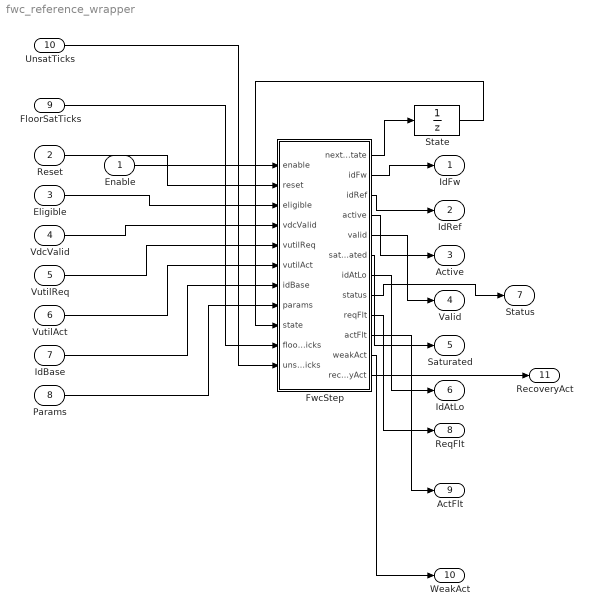
== matlab function fwc_reference_wrapper/FwcStep ==
function [nextState,idFw,idRef,active,valid,saturated,idAtLo,status,reqFlt,actFlt,weakAct,recoveryAct] = fcn(enable,reset,eligible,vdcValid,vutilReq,vutilAct,idBase,params,state,floorSatTicks,unsatTicks)
%#codegen
[nextState,idFw,idRef,active,valid,saturated,idAtLo,status,reqFlt,actFlt,weakAct,recoveryAct] = fwc_reference_step(enable,reset,eligible,vdcValid,vutilReq,vutilAct,idBase,state,params,floorSatTicks,unsatTicks);
end

/*
 * Academic License - for use in teaching, academic research, and meeting
 * course requirements at degree granting institutions only.  Not for
 * government, commercial, or other organizational use.
 *
 * File: fwc_reference_wrapper.c
 *
 * Code generated for Simulink model 'fwc_reference_wrapper'.
 *
 * Model version                  : 1.4
 * Simulink Coder version         : 26.1 (R2026a) 20-Nov-2025
 * C/C++ source code generated on : Wed Sep  9 15:52:31 2026
 *
 * Target selection: ert.tlc
 * Embedded hardware selection: ARM Compatible->ARM Cortex-M
 * Code generation objectives: Unspecified
 * Validation result: Not run
 */

#include "fwc_reference_wrapper.h"
#include <string.h>
#include "rt_nonfinite.h"
#include <math.h>
#include "fwc_reference_wrapper_private.h"
#include "rtwtypes.h"

/* Block states (default storage) */
DW_fwc_reference_wrapper_T fwc_reference_wrapper_DW;

/* External inputs (root inport signals with default storage) */
ExtU_fwc_reference_wrapper_T fwc_reference_wrapper_U;

/* External outputs (root outports fed by signals with default storage) */
ExtY_fwc_reference_wrapper_T fwc_reference_wrapper_Y;

/* Real-time model */
static RT_MODEL_fwc_reference_wrappe_T fwc_reference_wrapper_M_;
RT_MODEL_fwc_reference_wrappe_T *const fwc_reference_wrapper_M =
  &fwc_reference_wrapper_M_;
real32_T rt_roundf_snf(real32_T u)
{
  real32_T y;
  if (fabsf(u) < 8.388608E+6F) {
    if (u >= 0.5F) {
      y = floorf(u + 0.5F);
    } else if (u > -0.5F) {
      y = u * 0.0F;
    } else {
      y = ceilf(u - 0.5F);
    }
  } else {
    y = u;
  }

  return y;
}

/* Model step function */
void fwc_reference_wrapper_step(void)
{
  int32_T enterTicks;
  int32_T exitTicks;
  real32_T s[16];
  real32_T b_x;
  real32_T c_x;
  real32_T e_x;
  real32_T eps;
  real32_T f_x;
  real32_T hi;
  real32_T hyst;
  real32_T idLo;
  real32_T lo;
  real32_T target;
  real32_T tau;

  /* MATLAB Function: '<Root>/FwcStep' */
  memset(&s[0], 0, sizeof(real32_T) << 4U);

  /* Outport: '<Root>/IdFw' incorporates:
   *  MATLAB Function: '<Root>/FwcStep'
   */
  fwc_reference_wrapper_Y.IdFw = 0.0F;

  /* MATLAB Function: '<Root>/FwcStep' incorporates:
   *  Inport: '<Root>/IdBase'
   */
  fwc_reference_wrapper_Y.IdRef = fwc_reference_wrapper_U.IdBase;

  /* Outport: '<Root>/ReqFlt' incorporates:
   *  MATLAB Function: '<Root>/FwcStep'
   */
  fwc_reference_wrapper_Y.ReqFlt = 0.0F;

  /* Outport: '<Root>/ActFlt' incorporates:
   *  MATLAB Function: '<Root>/FwcStep'
   */
  fwc_reference_wrapper_Y.ActFlt = 0.0F;

  /* Outport: '<Root>/Active' incorporates:
   *  MATLAB Function: '<Root>/FwcStep'
   */
  fwc_reference_wrapper_Y.Active = 0U;

  /* Outport: '<Root>/Valid' incorporates:
   *  MATLAB Function: '<Root>/FwcStep'
   */
  fwc_reference_wrapper_Y.Valid = 0U;

  /* MATLAB Function: '<Root>/FwcStep' */
  fwc_reference_wrapper_Y.Saturated = 0U;
  fwc_reference_wrapper_Y.IdAtLo = 0U;

  /* Outport: '<Root>/Status' incorporates:
   *  MATLAB Function: '<Root>/FwcStep'
   */
  fwc_reference_wrapper_Y.Status = 0U;

  /* Outport: '<Root>/WeakAct' incorporates:
   *  MATLAB Function: '<Root>/FwcStep'
   */
  fwc_reference_wrapper_Y.WeakAct = 0U;

  /* MATLAB Function: '<Root>/FwcStep' incorporates:
   *  Inport: '<Root>/Eligible'
   *  Inport: '<Root>/Enable'
   *  Inport: '<Root>/FloorSatTicks'
   *  Inport: '<Root>/IdBase'
   *  Inport: '<Root>/Params'
   *  Inport: '<Root>/Reset'
   *  Inport: '<Root>/UnsatTicks'
   *  Inport: '<Root>/VdcValid'
   *  Inport: '<Root>/VutilAct'
   *  Inport: '<Root>/VutilReq'
   *  Outport: '<Root>/RecoveryAct'
   *  UnitDelay: '<Root>/State'
   */
  fwc_reference_wrapper_Y.RecoveryAct = 0U;
  if ((fwc_reference_wrapper_U.Enable != 0) && (fwc_reference_wrapper_U.Reset ==
       0)) {
    if (fwc_reference_wrapper_U.Eligible == 0) {
      /* Outport: '<Root>/Status' */
      fwc_reference_wrapper_Y.Status = 4U;
    } else if (fwc_reference_wrapper_U.VdcValid == 0) {
      /* Outport: '<Root>/Status' */
      fwc_reference_wrapper_Y.Status = 5U;
    } else if (rtIsInfF(fwc_reference_wrapper_U.VutilReq) || rtIsNaNF
               (fwc_reference_wrapper_U.VutilReq) || !(fabsf
                (fwc_reference_wrapper_U.VutilReq) < 1.0E+6F)) {
      /* Outport: '<Root>/Status' */
      fwc_reference_wrapper_Y.Status = 5U;
    } else if (rtIsInfF(fwc_reference_wrapper_U.VutilAct) || rtIsNaNF
               (fwc_reference_wrapper_U.VutilAct) || !(fabsf
                (fwc_reference_wrapper_U.VutilAct) < 1.0E+6F) ||
               (fwc_reference_wrapper_U.VutilReq < 0.0F) ||
               (fwc_reference_wrapper_U.VutilAct < 0.0F)) {
      /* Outport: '<Root>/Status' */
      fwc_reference_wrapper_Y.Status = 5U;
    } else {
      idLo = fwc_reference_wrapper_U.Params[0];
      if (rtIsInfF(fwc_reference_wrapper_U.Params[0]) || rtIsNaNF
          (fwc_reference_wrapper_U.Params[0]) || !(fabsf
           (fwc_reference_wrapper_U.Params[0]) < 1.0E+6F)) {
        idLo = 0.95F;
      }

      target = fminf(fmaxf(idLo, 0.0F), 1.0F);
      b_x = fwc_reference_wrapper_U.Params[1];
      if (rtIsInfF(fwc_reference_wrapper_U.Params[1]) || rtIsNaNF
          (fwc_reference_wrapper_U.Params[1]) || !(fabsf
           (fwc_reference_wrapper_U.Params[1]) < 1.0E+6F)) {
        b_x = 0.0F;
      }

      c_x = fwc_reference_wrapper_U.Params[2];
      if (rtIsInfF(fwc_reference_wrapper_U.Params[2]) || rtIsNaNF
          (fwc_reference_wrapper_U.Params[2]) || !(fabsf
           (fwc_reference_wrapper_U.Params[2]) < 1.0E+6F)) {
        c_x = 0.0F;
      }

      idLo = fwc_reference_wrapper_U.Params[3];
      if (rtIsInfF(fwc_reference_wrapper_U.Params[3]) || rtIsNaNF
          (fwc_reference_wrapper_U.Params[3]) || !(fabsf
           (fwc_reference_wrapper_U.Params[3]) < 1.0E+6F)) {
        idLo = 0.0F;
      }

      idLo = fminf(fmaxf(idLo, -0.3999939F), 0.0F);
      e_x = fwc_reference_wrapper_U.Params[4];
      if (rtIsInfF(fwc_reference_wrapper_U.Params[4]) || rtIsNaNF
          (fwc_reference_wrapper_U.Params[4]) || !(fabsf
           (fwc_reference_wrapper_U.Params[4]) < 1.0E+6F)) {
        e_x = 0.0F;
      }

      f_x = fwc_reference_wrapper_U.Params[5];
      if (rtIsInfF(fwc_reference_wrapper_U.Params[5]) || rtIsNaNF
          (fwc_reference_wrapper_U.Params[5]) || !(fabsf
           (fwc_reference_wrapper_U.Params[5]) < 1.0E+6F)) {
        f_x = 0.0F;
      }

      eps = fwc_reference_wrapper_U.Params[6];
      if (rtIsInfF(fwc_reference_wrapper_U.Params[6]) || rtIsNaNF
          (fwc_reference_wrapper_U.Params[6]) || !(fabsf
           (fwc_reference_wrapper_U.Params[6]) < 1.0E+6F)) {
        eps = 0.0F;
      }

      eps = fminf(fmaxf(eps, 0.0F), 1.0F);
      lo = fwc_reference_wrapper_U.Params[7];
      if (rtIsInfF(fwc_reference_wrapper_U.Params[7]) || rtIsNaNF
          (fwc_reference_wrapper_U.Params[7]) || !(fabsf
           (fwc_reference_wrapper_U.Params[7]) < 1.0E+6F)) {
        lo = 5.0F;
      }

      tau = fminf(fmaxf(lo, 0.0F), 100.0F);
      lo = fwc_reference_wrapper_U.Params[8];
      if (rtIsInfF(fwc_reference_wrapper_U.Params[8]) || rtIsNaNF
          (fwc_reference_wrapper_U.Params[8]) || !(fabsf
           (fwc_reference_wrapper_U.Params[8]) < 1.0E+6F)) {
        lo = 0.02F;
      }

      hyst = fminf(fmaxf(lo, 0.0F), fminf(0.05F, fminf(target, 1.0F - target)));
      lo = fwc_reference_wrapper_U.Params[9];
      if (rtIsInfF(fwc_reference_wrapper_U.Params[9]) || rtIsNaNF
          (fwc_reference_wrapper_U.Params[9]) || !(fabsf
           (fwc_reference_wrapper_U.Params[9]) < 1.0E+6F)) {
        lo = 2.0F;
      }

      enterTicks = (int32_T)ceilf(fminf(fmaxf(lo, 0.0F), 100.0F) * 2.0F);
      lo = fwc_reference_wrapper_U.Params[10];
      if (rtIsInfF(fwc_reference_wrapper_U.Params[10]) || rtIsNaNF
          (fwc_reference_wrapper_U.Params[10]) || !(fabsf
           (fwc_reference_wrapper_U.Params[10]) < 1.0E+6F)) {
        lo = 20.0F;
      }

      exitTicks = (int32_T)ceilf(fminf(fmaxf(lo, 0.0F), 1000.0F) * 2.0F);
      hi = target + hyst;
      lo = target - hyst;
      memcpy(&s[0], &fwc_reference_wrapper_DW.State_DSTATE[0], sizeof(real32_T) <<
             4U);
      if (fwc_reference_wrapper_DW.State_DSTATE[15] == 0.0F) {
        s[6] = 0.0F;
      } else if (fwc_reference_wrapper_DW.State_DSTATE[10] != target) {
        s[6] = 0.0F;
      } else if (fwc_reference_wrapper_DW.State_DSTATE[11] != hyst) {
        s[6] = 0.0F;
      } else if (fwc_reference_wrapper_DW.State_DSTATE[12] != enterTicks) {
        s[6] = 0.0F;
      }

      if (fwc_reference_wrapper_DW.State_DSTATE[15] == 0.0F) {
        s[7] = 0.0F;
      } else if (fwc_reference_wrapper_DW.State_DSTATE[10] != target) {
        s[7] = 0.0F;
      } else if (fwc_reference_wrapper_DW.State_DSTATE[11] != hyst) {
        s[7] = 0.0F;
      } else if (fwc_reference_wrapper_DW.State_DSTATE[13] != exitTicks) {
        s[7] = 0.0F;
      }

      if (fwc_reference_wrapper_DW.State_DSTATE[15] == 0.0F) {
        s[9] = 0.0F;
      } else if (fwc_reference_wrapper_DW.State_DSTATE[13] != exitTicks) {
        s[9] = 0.0F;
      } else if (fwc_reference_wrapper_DW.State_DSTATE[14] != eps) {
        s[9] = 0.0F;
      }

      s[10] = target;
      s[11] = hyst;
      s[12] = (real32_T)enterTicks;
      s[13] = (real32_T)exitTicks;
      s[14] = eps;
      s[15] = 1.0F;
      if ((s[4] == 0.0F) || (tau == 0.0F)) {
        s[2] = fwc_reference_wrapper_U.VutilReq;
        s[3] = fwc_reference_wrapper_U.VutilAct;
        s[4] = 1.0F;
      } else {
        target = 0.5F / (tau + 0.5F);
        s[2] += (fwc_reference_wrapper_U.VutilReq - s[2]) * target;
        s[3] += (fwc_reference_wrapper_U.VutilAct - s[3]) * target;
      }

      /* Outport: '<Root>/ReqFlt' incorporates:
       *  Inport: '<Root>/Params'
       *  Inport: '<Root>/VutilAct'
       *  Inport: '<Root>/VutilReq'
       */
      fwc_reference_wrapper_Y.ReqFlt = s[2];

      /* Outport: '<Root>/ActFlt' */
      fwc_reference_wrapper_Y.ActFlt = s[3];
      if (s[5] == 0.0F) {
        target = s[6];
        s[6] = 0.0F;
        if (s[2] > hi) {
          s[6] = fminf(target + 1.0F, (real32_T)enterTicks);
        }

        if ((s[2] > hi) && (s[6] >= enterTicks)) {
          s[5] = 1.0F;
          s[6] = 0.0F;
        }
      }

      target = 0.0F;
      if (s[5] != 0.0F) {
        if (s[2] > hi) {
          target = fminf(s[2] - hi, 1.0F);
        } else if (s[2] < lo) {
          target = fmaxf(s[2] - lo, -1.0F);
        }
      }

      hi = 0.0F;
      if (s[5] != 0.0F) {
        b_x = fminf(fmaxf(b_x, 0.0F), 100.0F) * target;
        tau = b_x + s[0];
        hi = fminf(fmaxf(tau, 0.0F), -idLo);
        if ((!(tau >= -idLo) || !(target > 0.0F)) && (!(tau <= 0.0F) || !(target
              < 0.0F))) {
          s[0] = fminf(fmaxf(fminf(fmaxf(c_x, 0.0F), 10000.0F) * 0.0005F *
                             target + s[0], idLo), -idLo);
          hi = fminf(fmaxf(b_x + s[0], 0.0F), -idLo);
        }
      }

      if (hi > s[1]) {
        s[1] += fminf(hi - s[1], fminf(fmaxf(e_x, 0.0F), 100.0F) * 0.0005F);
      } else {
        s[1] -= fminf(s[1] - hi, fminf(fmaxf(f_x, 0.0F), 100.0F) * 0.0005F);
      }

      s[1] = fminf(fmaxf(s[1], 0.0F), -idLo);

      /* Outport: '<Root>/IdFw' */
      fwc_reference_wrapper_Y.IdFw = -s[1];
      fwc_reference_wrapper_Y.IdRef = fmaxf(fminf(fminf
        (fwc_reference_wrapper_U.IdBase, 0.0F), -s[1]), idLo);
      fwc_reference_wrapper_Y.IdAtLo = (uint8_T)(truncf
        (fwc_reference_wrapper_Y.IdRef * 32768.0F - 0.5F) <= truncf(idLo *
        32768.0F));
      fwc_reference_wrapper_Y.Saturated = (uint8_T)
        (fwc_reference_wrapper_U.VutilReq - fwc_reference_wrapper_U.VutilAct >
         eps);
      if (s[8] == 0.0F) {
        s[9] = 0.0F;
        if ((fwc_reference_wrapper_Y.Saturated != 0) &&
            (fwc_reference_wrapper_Y.IdAtLo != 0) &&
            (fwc_reference_wrapper_U.FloorSatTicks >= 40U)) {
          s[8] = 1.0F;
        }
      } else {
        c_x = s[9];
        s[9] = 0.0F;
        if ((fwc_reference_wrapper_Y.Saturated == 0) &&
            (fwc_reference_wrapper_U.UnsatTicks >= 40U) && (s[2] - s[3] <= 0.5F *
             eps)) {
          s[9] = fminf(c_x + 1.0F, (real32_T)exitTicks);
          if (s[9] >= exitTicks) {
            s[8] = 0.0F;
            s[9] = 0.0F;
          }
        }
      }

      eps = s[7];
      s[7] = 0.0F;
      if ((s[5] != 0.0F) && ((s[2] < lo) && ((truncf(s[1] * 32768.0F + 0.5F) <=
             1.0F) && (s[8] == 0.0F)))) {
        s[7] = fminf(eps + 1.0F, (real32_T)exitTicks);
        if (s[7] >= exitTicks) {
          s[0] = 0.0F;
          s[1] = 0.0F;
          s[5] = 0.0F;
          s[7] = 0.0F;

          /* Outport: '<Root>/IdFw' */
          fwc_reference_wrapper_Y.IdFw = 0.0F;
          fwc_reference_wrapper_Y.IdRef = fminf(fmaxf
            (fwc_reference_wrapper_U.IdBase, idLo), 0.0F);
        }
      }

      idLo = rt_roundf_snf(s[5]);
      if (idLo < 256.0F) {
        if (idLo >= 0.0F) {
          /* Outport: '<Root>/WeakAct' */
          fwc_reference_wrapper_Y.WeakAct = (uint8_T)idLo;
        }
      } else {
        /* Outport: '<Root>/WeakAct' */
        fwc_reference_wrapper_Y.WeakAct = MAX_uint8_T;
      }

      idLo = rt_roundf_snf(s[8]);
      if (idLo < 256.0F) {
        if (idLo >= 0.0F) {
          fwc_reference_wrapper_Y.RecoveryAct = (uint8_T)idLo;
        } else {
          fwc_reference_wrapper_Y.RecoveryAct = 0U;
        }
      } else {
        fwc_reference_wrapper_Y.RecoveryAct = MAX_uint8_T;
      }

      /* Outport: '<Root>/Active' incorporates:
       *  Inport: '<Root>/FloorSatTicks'
       *  Inport: '<Root>/IdBase'
       *  Inport: '<Root>/UnsatTicks'
       *  Inport: '<Root>/VutilAct'
       *  Inport: '<Root>/VutilReq'
       */
      fwc_reference_wrapper_Y.Active = 1U;

      /* Outport: '<Root>/Valid' */
      fwc_reference_wrapper_Y.Valid = 1U;

      /* Outport: '<Root>/Status' */
      fwc_reference_wrapper_Y.Status = 1U;
      if (fwc_reference_wrapper_Y.RecoveryAct != 0) {
        /* Outport: '<Root>/Status' */
        fwc_reference_wrapper_Y.Status = 3U;
      } else if (fwc_reference_wrapper_Y.Saturated != 0) {
        /* Outport: '<Root>/Status' */
        fwc_reference_wrapper_Y.Status = 2U;
      }
    }
  }

  memcpy(&fwc_reference_wrapper_DW.State_DSTATE[0], &s[0], sizeof(real32_T) <<
         4U);
}
